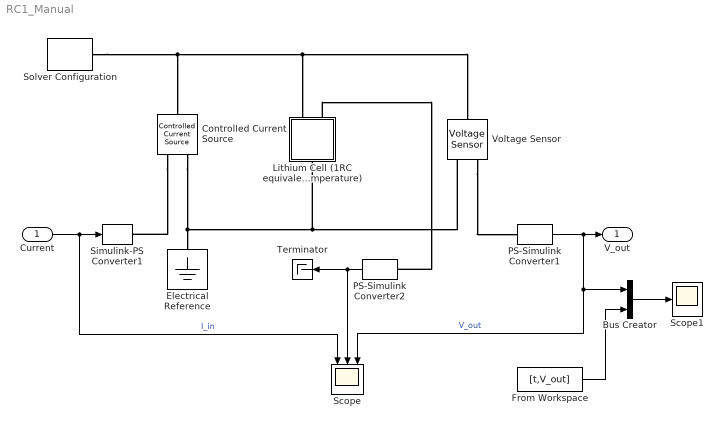
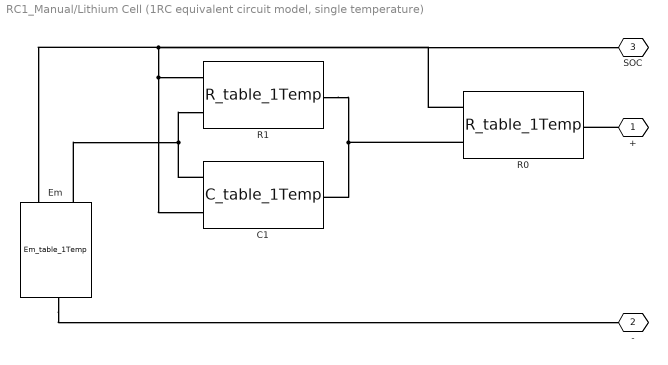
/*
 * File: RC1_Manual.c
 *
 * Code generated for Simulink model 'RC1_Manual'.
 *
 * Model version                  : 1.32
 * Simulink Coder version         : 8.14 (R2018a) 06-Feb-2018
 * C/C++ source code generated on : Mon Jun 11 10:34:03 2018
 *
 * Target selection: ert.tlc
 * Embedded hardware selection: Intel->x86-64 (Windows64)
 * Code generation objectives: Unspecified
 * Validation result: Not run
 */

#include "RC1_Manual.h"

/* Private macros used by the generated code to access rtModel */
#ifndef rtmIsMajorTimeStep
# define rtmIsMajorTimeStep(rtm)       (((rtm)->Timing.simTimeStep) == MAJOR_TIME_STEP)
#endif

#ifndef rtmIsMinorTimeStep
# define rtmIsMinorTimeStep(rtm)       (((rtm)->Timing.simTimeStep) == MINOR_TIME_STEP)
#endif

#ifndef rtmSetTPtr
# define rtmSetTPtr(rtm, val)          ((rtm)->Timing.t = (val))
#endif

/* Continuous states */
X rtX;

/* Mass Matrices */
MassMatrix rtMassMatrix;

/* Block signals and states (default storage) */
DW rtDW;

/* External inputs (root inport signals with default storage) */
ExtU rtU;

/* External outputs (root outports fed by signals with default storage) */
ExtY rtY;

/* Real-time model */
RT_MODEL rtM_;
RT_MODEL *const rtM = &rtM_;

/* private model entry point functions */
extern void RC1_Manual_derivatives(void);

/* ForcingFunction for root system: '<Root>' */
void RC1_Manual_forcingfunction(void)
{
  NeslSimulationData *simulationData;
  real_T time;
  boolean_T tmp;
  real_T tmp_0[4];
  int_T tmp_1[2];
  NeuDiagnosticManager *diagnosticManager;
  NeuDiagnosticTree *diagnosticTree;
  int32_T tmp_2;
  char *msg;
  XDot *_rtXdot;
  _rtXdot = ((XDot *) rtM->derivs);

  /* ForcingFunction for SimscapeExecutionBlock: '<S9>/STATE_1' */
  simulationData = (NeslSimulationData *)rtDW.STATE_1_SimulationData;
  time = rtM->Timing.t[0];
  simulationData->mData->mTime.mN = 1;
  simulationData->mData->mTime.mX = &time;
  simulationData->mData->mContStates.mN = 4;
  simulationData->mData->mContStates.mX = (real_T *)
    &rtX.RC1_ManualLithium_Cell_1RC_equi;
  simulationData->mData->mDiscStates.mN = 0;
  simulationData->mData->mDiscStates.mX = NULL;
  simulationData->mData->mModeVector.mN = 1;
  simulationData->mData->mModeVector.mX = &rtDW.STATE_1_Modes;
  tmp = false;
  simulationData->mData->mFoundZcEvents = tmp;
  simulationData->mData->mIsMajorTimeStep = rtmIsMajorTimeStep(rtM);
  tmp = false;
  simulationData->mData->mIsSolverAssertCheck = tmp;
  simulationData->mData->mIsSolverCheckingCIC = false;
  tmp = rtsiIsSolverComputingJacobian(&rtM->solverInfo);
  simulationData->mData->mIsComputingJacobian = tmp;
  simulationData->mData->mIsEvaluatingF0 = false;
  simulationData->mData->mIsSolverRequestingReset = false;
  tmp_1[0] = 0;
  tmp_0[0] = rtDW.INPUT_1_1_1[0];
  tmp_0[1] = rtDW.INPUT_1_1_1[1];
  tmp_0[2] = rtDW.INPUT_1_1_1[2];
  tmp_0[3] = rtDW.INPUT_1_1_1[3];
  tmp_1[1] = 4;
  simulationData->mData->mInputValues.mN = 4;
  simulationData->mData->mInputValues.mX = &tmp_0[0];
  simulationData->mData->mInputOffsets.mN = 2;
  simulationData->mData->mInputOffsets.mX = &tmp_1[0];
  simulationData->mData->mDx.mN = 4;
  simulationData->mData->mDx.mX = (real_T *)
    &_rtXdot->RC1_ManualLithium_Cell_1RC_equi;
  diagnosticManager = (NeuDiagnosticManager *)rtDW.STATE_1_DiagnosticManager;
  diagnosticTree = neu_diagnostic_manager_get_initial_tree(diagnosticManager);
  tmp_2 = ne_simulator_method((NeslSimulator *)rtDW.STATE_1_Simulator,
    NESL_SIM_FORCINGFUNCTION, simulationData, diagnosticManager);
  if (tmp_2 != 0) {
    tmp = error_buffer_is_empty(rtmGetErrorStatus(rtM));
    if (tmp) {
      msg = rtw_diagnostics_msg(diagnosticTree);
      rtmSetErrorStatus(rtM, msg);
    }
  }

  /* End of ForcingFunction for SimscapeExecutionBlock: '<S9>/STATE_1' */
}

/* MassMatrix for root system: '<Root>' */
void RC1_Manual_massmatrix(void)
{
  NeslSimulationData *simulationData;
  real_T time;
  boolean_T tmp;
  real_T tmp_0[4];
  int_T tmp_1[2];
  real_T *tmp_2;
  NeuDiagnosticManager *diagnosticManager;
  NeuDiagnosticTree *diagnosticTree;
  int32_T tmp_3;
  char *msg;

  /* MassMatrix for SimscapeExecutionBlock: '<S9>/STATE_1' */
  simulationData = (NeslSimulationData *)rtDW.STATE_1_SimulationData;
  time = rtM->Timing.t[0];
  simulationData->mData->mTime.mN = 1;
  simulationData->mData->mTime.mX = &time;
  simulationData->mData->mContStates.mN = 4;
  simulationData->mData->mContStates.mX = (real_T *)
    &rtX.RC1_ManualLithium_Cell_1RC_equi;
  simulationData->mData->mDiscStates.mN = 0;
  simulationData->mData->mDiscStates.mX = NULL;
  simulationData->mData->mModeVector.mN = 1;
  simulationData->mData->mModeVector.mX = &rtDW.STATE_1_Modes;
  tmp = false;
  simulationData->mData->mFoundZcEvents = tmp;
  simulationData->mData->mIsMajorTimeStep = rtmIsMajorTimeStep(rtM);
  tmp = false;
  simulationData->mData->mIsSolverAssertCheck = tmp;
  simulationData->mData->mIsSolverCheckingCIC = false;
  tmp = rtsiIsSolverComputingJacobian(&rtM->solverInfo);
  simulationData->mData->mIsComputingJacobian = tmp;
  simulationData->mData->mIsEvaluatingF0 = false;
  simulationData->mData->mIsSolverRequestingReset = false;
  tmp_1[0] = 0;
  tmp_0[0] = rtDW.INPUT_1_1_1[0];
  tmp_0[1] = rtDW.INPUT_1_1_1[1];
  tmp_0[2] = rtDW.INPUT_1_1_1[2];
  tmp_0[3] = rtDW.INPUT_1_1_1[3];
  tmp_1[1] = 4;
  simulationData->mData->mInputValues.mN = 4;
  simulationData->mData->mInputValues.mX = &tmp_0[0];
  simulationData->mData->mInputOffsets.mN = 2;
  simulationData->mData->mInputOffsets.mX = &tmp_1[0];
  tmp_2 = rtMassMatrix.pr;
  tmp_2 = double_pointer_shift(tmp_2, rtDW.STATE_1_MASS_MATRIX_PR);
  simulationData->mData->mMassMatrixPr.mN = 2;
  simulationData->mData->mMassMatrixPr.mX = tmp_2;
  diagnosticManager = (NeuDiagnosticManager *)rtDW.STATE_1_DiagnosticManager;
  diagnosticTree = neu_diagnostic_manager_get_initial_tree(diagnosticManager);
  tmp_3 = ne_simulator_method((NeslSimulator *)rtDW.STATE_1_Simulator,
    NESL_SIM_MASSMATRIX, simulationData, diagnosticManager);
  if (tmp_3 != 0) {
    tmp = error_buffer_is_empty(rtmGetErrorStatus(rtM));
    if (tmp) {
      msg = rtw_diagnostics_msg(diagnosticTree);
      rtmSetErrorStatus(rtM, msg);
    }
  }

  /* End of MassMatrix for SimscapeExecutionBlock: '<S9>/STATE_1' */
}

void local_evaluateMassMatrix(RTWSolverInfo *si, real_T *Mdest )
{
  /* Refresh global mass matrix */
  RC1_Manual_massmatrix();

  /* Copy the mass matrix from system to the destination, if needed. */
  if (Mdest != rtsiGetSolverMassMatrixPr(si)) {
    real_T *Msrc = rtsiGetSolverMassMatrixPr(si);
    int_T nzmax = rtsiGetSolverMassMatrixNzMax(si);
    (void) memcpy(Mdest, Msrc,
                  (uint_T)nzmax*sizeof(real_T));
  }
}

void local_evaluateFminusMv(RTWSolverInfo *si, const real_T *v, real_T *fminusMv
  )
{
  /* Refresh forcing function */
  rtsiSetdX(si,fminusMv);
  RC1_Manual_forcingfunction();

  /* Refresh global mass matrix */
  RC1_Manual_massmatrix();

  /* Form f - M*v */
  {
    real_T *elptr = rtsiGetSolverMassMatrixPr(si);
    int_T *iptr = rtsiGetSolverMassMatrixIr(si);
    int_T *jc = rtsiGetSolverMassMatrixJc(si);
    int_T nx = 4;
    int_T col,row;
    for (col = 0; col < nx; col++) {
      for (row = jc[col]; row < jc[col+1]; row++) {
        fminusMv[*iptr++] -= (*v) * (*elptr++);
      }

      v++;
    }
  }
}

/* Simplified version of numjac.cpp, for use with RTW. */
void local_numjac( RTWSolverInfo *si, real_T *y, const real_T *v, const real_T
                  *Fty, real_T *fac, real_T *dFdy )
{
  /* constants */
  real_T THRESH = 1e-6;
  real_T EPS = 2.2e-16;                /* utGetEps(); */
  real_T BL = pow(EPS, 0.75);
  real_T BU = pow(EPS, 0.25);
  real_T FACMIN = pow(EPS, 0.78);
  real_T FACMAX = 0.1;
  int_T nx = 4;
  real_T *x = rtsiGetContStates(si);
  real_T del;
  real_T difmax;
  real_T FdelRowmax;
  real_T temp;
  real_T Fdiff;
  real_T maybe;
  real_T xscale;
  real_T fscale;
  real_T *p;
  int_T rowmax;
  int_T i,j;
  if (x != y)
    (void) memcpy(x, y,
                  (uint_T)nx*sizeof(real_T));
  rtsiSetSolverComputingJacobian(si,true);
  for (p = dFdy, j = 0; j < nx; j++, p += nx) {
    /* Select an increment del for a difference approximation to
       column j of dFdy.  The vector fac accounts for experience
       gained in previous calls to numjac. */
    xscale = fabs(x[j]);
    if (xscale < THRESH)
      xscale = THRESH;
    temp = (x[j] + fac[j]*xscale);
    del = temp - y[j];
    while (del == 0.0) {
      if (fac[j] < FACMAX) {
        fac[j] *= 100.0;
        if (fac[j] > FACMAX)
          fac[j] = FACMAX;
        temp = (x[j] + fac[j]*xscale);
        del = temp - x[j];
      } else {
        del = THRESH;                  /* thresh is nonzero */
        break;
      }
    }

    /* Keep del pointing into region. */
    if (Fty[j] >= 0.0)
      del = fabs(del);
    else
      del = -fabs(del);

    /* Form a difference approximation to column j of dFdy. */
    temp = x[j];
    x[j] += del;
    RC1_Manual_step();
    local_evaluateFminusMv(si,v,p );
    x[j] = temp;
    difmax = 0.0;
    rowmax = 0;
    FdelRowmax = p[0];
    temp = 1.0 / del;
    for (i = 0; i < nx; i++) {
      Fdiff = p[i] - Fty[i];
      maybe = fabs(Fdiff);
      if (maybe > difmax) {
        difmax = maybe;
        rowmax = i;
        FdelRowmax = p[i];
      }

      p[i] = temp * Fdiff;
    }

    /* Adjust fac for next call to numjac. */
    if (((FdelRowmax != 0.0) && (Fty[rowmax] != 0.0)) || (difmax == 0.0)) {
      fscale = fabs(FdelRowmax);
      if (fscale < fabs(Fty[rowmax]))
        fscale = fabs(Fty[rowmax]);
      if (difmax <= BL*fscale) {
        /* The difference is small, so increase the increment. */
        fac[j] *= 10.0;
        if (fac[j] > FACMAX)
          fac[j] = FACMAX;
      } else if (difmax > BU*fscale) {
        /* The difference is large, so reduce the increment. */
        fac[j] *= 0.1;
        if (fac[j] < FACMIN)
          fac[j] = FACMIN;
      }
    }
  }

  rtsiSetSolverComputingJacobian(si,false);
}                                      /* end local_numjac */

/*
 * This function updates continuous states using the ODE14x fixed-step
 * solver algorithm
 */
static void rt_ertODEUpdateContinuousStates(RTWSolverInfo *si )
{
  /* Solver Matrices */
  static int_T rt_ODE14x_N[4] = { 12, 8, 6, 4 };

  time_T t0 = rtsiGetT(si);
  time_T t1 = t0;
  time_T h = rtsiGetStepSize(si);
  real_T *x1 = rtsiGetContStates(si);
  int_T order = rtsiGetSolverExtrapolationOrder(si);
  int_T numIter = rtsiGetSolverNumberNewtonIterations(si);
  ODE14X_IntgData *id = (ODE14X_IntgData *)rtsiGetSolverData(si);
  real_T *x0 = id->x0;
  real_T *f0 = id->f0;
  real_T *x1start = id->x1start;
  real_T *f1 = id->f1;
  real_T *Delta = id->Delta;
  real_T *E = id->E;
  real_T *fac = id->fac;
  real_T *dfdx = id->DFDX;
  real_T *W = id->W;
  int_T *pivots = id->pivots;
  real_T *xtmp = id->xtmp;
  real_T *ztmp = id->ztmp;
  int_T *Mpattern_ir = rtsiGetSolverMassMatrixIr(si);
  int_T *Mpattern_jc = rtsiGetSolverMassMatrixJc(si);
  real_T *M = id->M;
  real_T *M1 = id->M1;
  real_T *xdot = id->xdot;
  real_T *Edot = id->Edot;
  real_T *fminusMxdot = id->fminusMxdot;
  int_T col,row,rowidx;
  int_T *N = &(rt_ODE14x_N[0]);
  int_T i,j,k,iter;
  int_T nx = 4;
  rtsiSetSimTimeStep(si,MINOR_TIME_STEP);

  /* Save the state values at time t in y, we'll use x as ynew. */
  (void) memcpy(x0, x1,
                (uint_T)nx*sizeof(real_T));

  /* Assumes that rtsiSetT and ModelOutputs are up-to-date */
  local_evaluateMassMatrix(si,M );
  rtsiSetdX(si, xdot);
  RC1_Manual_derivatives();

  /* f0 = f(t,y) */
  rtsiSetdX(si, f0);
  RC1_Manual_forcingfunction();

  /* Form fminusMxdot = f(x) - M(x)*xdot, d(fminusMxdot)/dx = df/dx - d(Mv)/dx */
  (void) memcpy(fminusMxdot, f0,
                (uint_T)nx*sizeof(real_T));
  for (col = 0; col < nx; col++) {
    for (rowidx = Mpattern_jc[col]; rowidx < Mpattern_jc[col+1]; rowidx++) {
      real_T m_row_col = M[rowidx];
      row = Mpattern_ir[rowidx];
      fminusMxdot[row] -= m_row_col*xdot[col];
    }
  }

  local_numjac(si,x0,xdot,fminusMxdot,fac,dfdx );
  for (j = 0; j < order; j++) {
    real_T *p;
    real_T hN = h/N[j];

    /* Get the iteration matrix and solution at t0 */

    /* [L,U] = lu(M - hN*J) */
    (void) memcpy(W, dfdx,
                  (uint_T)nx*nx*sizeof(real_T));
    for (p = W, i = 0; i < nx*nx; i++, p++) {
      *p *= (-hN);
    }

    for (col = 0, p = W; col < nx; col++, p += nx) {
      for (rowidx = Mpattern_jc[col]; rowidx < Mpattern_jc[col+1]; rowidx++) {
        real_T m_row_col = M[rowidx];
        row = Mpattern_ir[rowidx];
        p[row] += m_row_col;
      }
    }

    rt_lu_real(W, nx,
               pivots);

    /* First Newton's iteration at t0. */
    /* rhs = hN*f0 */
    for (i = 0; i < nx; i++) {
      Delta[i] = hN*f0[i];
    }

    /* Delta = (U \ (L \ rhs)) */
    rt_ForwardSubstitutionRR_Dbl(W, Delta,
      f1, nx,
      1, pivots,
      1);
    rt_BackwardSubstitutionRR_Dbl(W+nx*nx-1, f1+nx-1,
      Delta, nx,
      1, 0);

    /* ytmp = y0 + Delta
       ztmp = (ytmp-y0)/h
     */
    (void) memcpy(x1, x0,
                  (uint_T)nx*sizeof(real_T));
    for (i = 0; i < nx; i++) {
      x1[i] += Delta[i];
      ztmp[i] = Delta[i]/hN;
    }

    /* Additional Newton's iterations, if desired.
       for iter = 2:NewtIter
       rhs = hN*feval(odefun,tn,ytmp,extraArgs{:}) - M*(ytmp - yn);
       if statedepM   % only for state dep. Mdel ~= 0
       Mdel = M - feval(massfun,tn,ytmp);
       rhs = rhs + Mdel*ztmp*h;
       end
       Delta = ( U \ ( L \ rhs ) );
       ytmp = ytmp + Delta;
       ztmp = (ytmp - yn)/h
       end
     */
    rtsiSetT(si, t0);
    rtsiSetdX(si, f1);
    for (iter = 1; iter < numIter; iter++) {
      RC1_Manual_step();
      RC1_Manual_forcingfunction();
      for (i = 0; i < nx; i++) {
        Delta[i] = hN*f1[i];
        xtmp[i] = x1[i] - x0[i];
      }

      /* rhs = hN*f(tn,ytmp) - M*(ytmp-yn) */
      for (col = 0; col < nx; col++) {
        for (rowidx = Mpattern_jc[col]; rowidx < Mpattern_jc[col+1]; rowidx++) {
          real_T m_row_col = M[rowidx];
          row = Mpattern_ir[rowidx];
          Delta[row] -= m_row_col*xtmp[col];
        }
      }

      /* rhs = rhs - (Mtmp - M)*ztmp*h */
      local_evaluateMassMatrix(si,M1 );
      for (i = 0; i < rtsiGetSolverMassMatrixNzMax(si); i++) {
        M1[i] -= M[i];
      }

      for (col = 0; col < nx; col++) {
        for (rowidx = Mpattern_jc[col]; rowidx < Mpattern_jc[col+1]; rowidx++) {
          real_T m_row_col = M1[rowidx];
          row = Mpattern_ir[rowidx];
          Delta[row] -= hN*m_row_col*ztmp[col];
        }
      }

      rt_ForwardSubstitutionRR_Dbl(W, Delta,
        f1, nx,
        1, pivots,
        1);
      rt_BackwardSubstitutionRR_Dbl(W+nx*nx-1, f1+nx-1,
        Delta, nx,
        1, 0);

      /* ytmp = ytmp + delta
         ztmp = (ytmp - yn)/h
       */
      for (i = 0; i < nx; i++) {
        x1[i] += Delta[i];
        ztmp[i] = (x1[i] - x0[i])/hN;
      }
    }

    /* Steps from t0+hN to t1 -- subintegration of N(j) steps for extrapolation
       ttmp = t0;
       for i = 2:N(j)
       ttmp = ttmp + hN
       ytmp0 = ytmp;
       for iter = 1:NewtIter
       rhs = (ytmp0 - ytmp) + hN*feval(odefun,ttmp,ytmp,extraArgs{:});
       Delta = ( U \ ( L \ rhs ) );
       ytmp = ytmp + Delta;
       end
       end
     */
    for (k = 1; k < N[j]; k++) {
      t1 = t0 + k*hN;
      (void) memcpy(x1start, x1,
                    (uint_T)nx*sizeof(real_T));
      rtsiSetT(si, t1);
      rtsiSetdX(si, f1);
      for (iter = 0; iter < numIter; iter++) {
        RC1_Manual_step();
        RC1_Manual_forcingfunction();
        if (iter == 0) {
          for (i = 0; i < nx; i++) {
            Delta[i] = hN*f1[i];
          }
        } else {
          for (i = 0; i < nx; i++) {
            Delta[i] = hN*f1[i];
            xtmp[i] = (x1[i]-x1start[i]);
          }

          /* rhs = hN*f(tn,ytmp) - M*(ytmp-yn) */
          for (col = 0; col < nx; col++) {
            for (rowidx = Mpattern_jc[col]; rowidx < Mpattern_jc[col+1]; rowidx
                 ++) {
              real_T m_row_col = M[rowidx];
              row = Mpattern_ir[rowidx];
              Delta[row] -= m_row_col*xtmp[col];
            }
          }
        }

        /* For state-dep.,  Mdel = M(ttmp,ytmp) - M */
        RC1_Manual_step();
        local_evaluateMassMatrix(si,M1 );
        for (i = 0; i < rtsiGetSolverMassMatrixNzMax(si); i++) {
          M1[i] -= M[i];
        }

        /* rhs = rhs - Mdel*ztmp*h */
        for (col = 0; col < nx; col++) {
          for (rowidx = Mpattern_jc[col]; rowidx < Mpattern_jc[col+1]; rowidx++)
          {
            real_T m_row_col = M1[rowidx];
            row = Mpattern_ir[rowidx];
            Delta[row] -= hN*m_row_col*ztmp[col];
          }
        }

        rt_ForwardSubstitutionRR_Dbl(W, Delta,
          f1, nx,
          1, pivots,
          1);
        rt_BackwardSubstitutionRR_Dbl(W+nx*nx-1, f1+nx-1,
          Delta, nx,
          1, 0);

        /* ytmp = ytmp + Delta
           ztmp = (ytmp - ytmp0)/h
         */
        for (i = 0; i < nx; i++) {
          x1[i] += Delta[i];
          ztmp[i] = (x1[i] - x1start[i])/hN;
        }
      }
    }

    /* Extrapolate to order j
       E(:,j) = ytmp
       for k = j:-1:2
       coef = N(k-1)/(N(j) - N(k-1))
       E(:,k-1) = E(:,k) + coef*( E(:,k) - E(:,k-1) )
       end
     */
    (void) memcpy(&(E[nx*j]), x1,
                  (uint_T)nx*sizeof(real_T));
    for (k = j; k > 0; k--) {
      real_T coef = (real_T)(N[k-1]) / (N[j]-N[k-1]);
      for (i = 0; i < nx; i++) {
        x1[i] = E[nx*k+i] + coef*(E[nx*k+i] - E[nx*(k-1)+i]);
      }

      (void) memcpy(&(E[nx*(k-1)]), x1,
                    (uint_T)nx*sizeof(real_T));
    }

    /* Extrapolate the derivative */
    for (i = 0; i < nx; i++) {
      xdot[i] = (x1[i] - x1start[i])/hN;
    }

    (void) memcpy(&(Edot[nx*j]), xdot,
                  (uint_T)nx*sizeof(real_T));
    for (k = j; k > 0; k--) {
      real_T coef = (real_T)(N[k-1]) / (N[j]-N[k-1]);
      for (i = 0; i < nx; i++) {
        xdot[i] = Edot[nx*k+i] + coef*(Edot[nx*k+i] - Edot[nx*(k-1)+i]);
      }

      (void) memcpy(&(Edot[nx*(k-1)]), xdot,
                    nx*sizeof(real_T));
    }
  }

  /* x1 = E(:,1); */
  (void) memcpy(x1, E,
                (uint_T)nx*sizeof(real_T));

  /* Extrapolated xdot */
  (void) memcpy(xdot, Edot,
                nx*sizeof(real_T));

  /* t1 = t0 + h; */
  rtsiSetT(si,rtsiGetSolverStopTime(si));
  rtsiSetSimTimeStep(si,MAJOR_TIME_STEP);
}

/* Model step function */
void RC1_Manual_step(void)
{
  if (rtmIsMajorTimeStep(rtM)) {
    /* set solver stop time */
    rtsiSetSolverStopTime(&rtM->solverInfo,((rtM->Timing.clockTick0+1)*
      rtM->Timing.stepSize0));
  }                                    /* end MajorTimeStep */

  /* Update absolute time of base rate at minor time step */
  if (rtmIsMinorTimeStep(rtM)) {
    rtM->Timing.t[0] = rtsiGetT(&rtM->solverInfo);
  }

  {
    NeslSimulationData *simulationData;
    real_T time;
    boolean_T tmp;
    real_T tmp_0[4];
    int_T tmp_1[2];
    NeuDiagnosticManager *diagnosticManager;
    NeuDiagnosticTree *diagnosticTree;
    int32_T tmp_2;
    char *msg;
    real_T time_0;
    real_T tmp_3[9];
    int_T tmp_4[3];
    real_T time_1;
    real_T tmp_5[9];
    int_T tmp_6[3];
    real_T rtb_OUTPUT_1_0;
    boolean_T tmp_7;

    /* SimscapeExecutionBlock: '<S9>/STATE_1' incorporates:
     *  SimscapeExecutionBlock: '<S9>/OUTPUT_1_0'
     *  SimscapeExecutionBlock: '<S9>/OUTPUT_1_1'
     */
    simulationData = (NeslSimulationData *)rtDW.STATE_1_SimulationData;
    time = rtM->Timing.t[0];
    simulationData->mData->mTime.mN = 1;
    simulationData->mData->mTime.mX = &time;
    simulationData->mData->mContStates.mN = 4;
    simulationData->mData->mContStates.mX = (real_T *)
      &rtX.RC1_ManualLithium_Cell_1RC_equi;
    simulationData->mData->mDiscStates.mN = 0;
    simulationData->mData->mDiscStates.mX = NULL;
    simulationData->mData->mModeVector.mN = 1;
    simulationData->mData->mModeVector.mX = &rtDW.STATE_1_Modes;
    tmp = false;
    simulationData->mData->mFoundZcEvents = tmp;
    tmp_7 = rtmIsMajorTimeStep(rtM);
    simulationData->mData->mIsMajorTimeStep = tmp_7;
    tmp = false;
    simulationData->mData->mIsSolverAssertCheck = tmp;
    simulationData->mData->mIsSolverCheckingCIC = false;
    tmp = rtsiIsSolverComputingJacobian(&rtM->solverInfo);
    simulationData->mData->mIsComputingJacobian = tmp;
    simulationData->mData->mIsEvaluatingF0 = false;
    simulationData->mData->mIsSolverRequestingReset = false;
    tmp_1[0] = 0;
    tmp_0[0] = rtDW.INPUT_1_1_1[0];
    tmp_0[1] = rtDW.INPUT_1_1_1[1];
    tmp_0[2] = rtDW.INPUT_1_1_1[2];
    tmp_0[3] = rtDW.INPUT_1_1_1[3];
    tmp_1[1] = 4;
    simulationData->mData->mInputValues.mN = 4;
    simulationData->mData->mInputValues.mX = &tmp_0[0];
    simulationData->mData->mInputOffsets.mN = 2;
    simulationData->mData->mInputOffsets.mX = &tmp_1[0];
    simulationData->mData->mOutputs.mN = 5;
    simulationData->mData->mOutputs.mX = &rtDW.STATE_1[0];
    simulationData->mData->mSampleHits.mN = 0;
    simulationData->mData->mSampleHits.mX = NULL;
    simulationData->mData->mIsFundamentalSampleHit = false;
    simulationData->mData->mTolerances.mN = 0;
    simulationData->mData->mTolerances.mX = NULL;
    simulationData->mData->mCstateHasChanged = false;
    diagnosticManager = (NeuDiagnosticManager *)rtDW.STATE_1_DiagnosticManager;
    diagnosticTree = neu_diagnostic_manager_get_initial_tree(diagnosticManager);
    tmp_2 = ne_simulator_method((NeslSimulator *)rtDW.STATE_1_Simulator,
      NESL_SIM_OUTPUTS, simulationData, diagnosticManager);
    if (tmp_2 != 0) {
      tmp = error_buffer_is_empty(rtmGetErrorStatus(rtM));
      if (tmp) {
        msg = rtw_diagnostics_msg(diagnosticTree);
        rtmSetErrorStatus(rtM, msg);
      }
    }

    /* End of SimscapeExecutionBlock: '<S9>/STATE_1' */

    /* SimscapeInputBlock: '<S9>/INPUT_1_1_1' incorporates:
     *  Inport: '<Root>/Current'
     */
    rtDW.INPUT_1_1_1[0] = rtU.I_in;
    rtDW.INPUT_1_1_1[1] = 0.0;
    rtDW.INPUT_1_1_1[2] = 0.0;
    if (rtmIsMajorTimeStep(rtM)) {
      rtDW.INPUT_1_1_1_discrete[0] = !(rtDW.INPUT_1_1_1[0] ==
        rtDW.INPUT_1_1_1_discrete[1]);
      rtDW.INPUT_1_1_1_discrete[1] = rtDW.INPUT_1_1_1[0];
    }

    rtDW.INPUT_1_1_1[0] = rtDW.INPUT_1_1_1_discrete[1];
    rtDW.INPUT_1_1_1[3] = rtDW.INPUT_1_1_1_discrete[0];

    /* End of SimscapeInputBlock: '<S9>/INPUT_1_1_1' */

    /* SimscapeExecutionBlock: '<S9>/OUTPUT_1_1' */
    simulationData = (NeslSimulationData *)rtDW.OUTPUT_1_1_SimulationData;
    time_0 = rtM->Timing.t[0];
    simulationData->mData->mTime.mN = 1;
    simulationData->mData->mTime.mX = &time_0;
    simulationData->mData->mContStates.mN = 0;
    simulationData->mData->mContStates.mX = NULL;
    simulationData->mData->mDiscStates.mN = 0;
    simulationData->mData->mDiscStates.mX = NULL;
    simulationData->mData->mModeVector.mN = 0;
    simulationData->mData->mModeVector.mX = NULL;
    tmp = false;
    simulationData->mData->mFoundZcEvents = tmp;
    simulationData->mData->mIsMajorTimeStep = tmp_7;
    tmp = false;
    simulationData->mData->mIsSolverAssertCheck = tmp;
    simulationData->mData->mIsSolverCheckingCIC = false;
    simulationData->mData->mIsComputingJacobian = false;
    simulationData->mData->mIsEvaluatingF0 = false;
    simulationData->mData->mIsSolverRequestingReset = false;
    tmp_4[0] = 0;
    tmp_3[0] = rtDW.INPUT_1_1_1[0];
    tmp_3[1] = rtDW.INPUT_1_1_1[1];
    tmp_3[2] = rtDW.INPUT_1_1_1[2];
    tmp_3[3] = rtDW.INPUT_1_1_1[3];
    tmp_4[1] = 4;
    tmp_3[4] = rtDW.STATE_1[0];
    tmp_3[5] = rtDW.STATE_1[1];
    tmp_3[6] = rtDW.STATE_1[2];
    tmp_3[7] = rtDW.STATE_1[3];
    tmp_3[8] = rtDW.STATE_1[4];
    tmp_4[2] = 9;
    simulationData->mData->mInputValues.mN = 9;
    simulationData->mData->mInputValues.mX = &tmp_3[0];
    simulationData->mData->mInputOffsets.mN = 3;
    simulationData->mData->mInputOffsets.mX = &tmp_4[0];
    simulationData->mData->mOutputs.mN = 1;
    simulationData->mData->mOutputs.mX = &rtDW.OUTPUT_1_1;
    simulationData->mData->mSampleHits.mN = 0;
    simulationData->mData->mSampleHits.mX = NULL;
    simulationData->mData->mIsFundamentalSampleHit = false;
    simulationData->mData->mTolerances.mN = 0;
    simulationData->mData->mTolerances.mX = NULL;
    simulationData->mData->mCstateHasChanged = false;
    diagnosticManager = (NeuDiagnosticManager *)
      rtDW.OUTPUT_1_1_DiagnosticManager;
    diagnosticTree = neu_diagnostic_manager_get_initial_tree(diagnosticManager);
    tmp_2 = ne_simulator_method((NeslSimulator *)rtDW.OUTPUT_1_1_Simulator,
      NESL_SIM_OUTPUTS, simulationData, diagnosticManager);
    if (tmp_2 != 0) {
      tmp = error_buffer_is_empty(rtmGetErrorStatus(rtM));
      if (tmp) {
        msg = rtw_diagnostics_msg(diagnosticTree);
        rtmSetErrorStatus(rtM, msg);
      }
    }

    /* Outport: '<Root>/V_out' */
    rtY.V_out = rtDW.OUTPUT_1_1;

    /* SimscapeExecutionBlock: '<S9>/OUTPUT_1_0' */
    simulationData = (NeslSimulationData *)rtDW.OUTPUT_1_0_SimulationData;
    time_1 = rtM->Timing.t[0];
    simulationData->mData->mTime.mN = 1;
    simulationData->mData->mTime.mX = &time_1;
    simulationData->mData->mContStates.mN = 0;
    simulationData->mData->mContStates.mX = NULL;
    simulationData->mData->mDiscStates.mN = 0;
    simulationData->mData->mDiscStates.mX = NULL;
    simulationData->mData->mModeVector.mN = 0;
    simulationData->mData->mModeVector.mX = NULL;
    tmp = false;
    simulationData->mData->mFoundZcEvents = tmp;
    simulationData->mData->mIsMajorTimeStep = tmp_7;
    tmp = false;
    simulationData->mData->mIsSolverAssertCheck = tmp;
    simulationData->mData->mIsSolverCheckingCIC = false;
    simulationData->mData->mIsComputingJacobian = false;
    simulationData->mData->mIsEvaluatingF0 = false;
    simulationData->mData->mIsSolverRequestingReset = false;
    tmp_6[0] = 0;
    tmp_5[0] = rtDW.INPUT_1_1_1[0];
    tmp_5[1] = rtDW.INPUT_1_1_1[1];
    tmp_5[2] = rtDW.INPUT_1_1_1[2];
    tmp_5[3] = rtDW.INPUT_1_1_1[3];
    tmp_6[1] = 4;
    tmp_5[4] = rtDW.STATE_1[0];
    tmp_5[5] = rtDW.STATE_1[1];
    tmp_5[6] = rtDW.STATE_1[2];
    tmp_5[7] = rtDW.STATE_1[3];
    tmp_5[8] = rtDW.STATE_1[4];
    tmp_6[2] = 9;
    simulationData->mData->mInputValues.mN = 9;
    simulationData->mData->mInputValues.mX = &tmp_5[0];
    simulationData->mData->mInputOffsets.mN = 3;
    simulationData->mData->mInputOffsets.mX = &tmp_6[0];
    simulationData->mData->mOutputs.mN = 1;
    simulationData->mData->mOutputs.mX = &rtb_OUTPUT_1_0;
    simulationData->mData->mSampleHits.mN = 0;
    simulationData->mData->mSampleHits.mX = NULL;
    simulationData->mData->mIsFundamentalSampleHit = false;
    simulationData->mData->mTolerances.mN = 0;
    simulationData->mData->mTolerances.mX = NULL;
    simulationData->mData->mCstateHasChanged = false;
    diagnosticManager = (NeuDiagnosticManager *)
      rtDW.OUTPUT_1_0_DiagnosticManager;
    diagnosticTree = neu_diagnostic_manager_get_initial_tree(diagnosticManager);
    tmp_2 = ne_simulator_method((NeslSimulator *)rtDW.OUTPUT_1_0_Simulator,
      NESL_SIM_OUTPUTS, simulationData, diagnosticManager);
    if (tmp_2 != 0) {
      tmp = error_buffer_is_empty(rtmGetErrorStatus(rtM));
      if (tmp) {
        msg = rtw_diagnostics_msg(diagnosticTree);
        rtmSetErrorStatus(rtM, msg);
      }
    }
  }

  if (rtmIsMajorTimeStep(rtM)) {
    NeslSimulationData *simulationData;
    real_T time;
    boolean_T tmp;
    real_T tmp_0[4];
    int_T tmp_1[2];
    NeuDiagnosticManager *diagnosticManager;
    NeuDiagnosticTree *diagnosticTree;
    int32_T tmp_2;
    char *msg;

    /* Update for SimscapeExecutionBlock: '<S9>/STATE_1' */
    simulationData = (NeslSimulationData *)rtDW.STATE_1_SimulationData;
    time = rtM->Timing.t[0];
    simulationData->mData->mTime.mN = 1;
    simulationData->mData->mTime.mX = &time;
    simulationData->mData->mContStates.mN = 4;
    simulationData->mData->mContStates.mX = (real_T *)
      &rtX.RC1_ManualLithium_Cell_1RC_equi;
    simulationData->mData->mDiscStates.mN = 0;
    simulationData->mData->mDiscStates.mX = NULL;
    simulationData->mData->mModeVector.mN = 1;
    simulationData->mData->mModeVector.mX = &rtDW.STATE_1_Modes;
    tmp = false;
    simulationData->mData->mFoundZcEvents = tmp;
    simulationData->mData->mIsMajorTimeStep = rtmIsMajorTimeStep(rtM);
    tmp = false;
    simulationData->mData->mIsSolverAssertCheck = tmp;
    simulationData->mData->mIsSolverCheckingCIC = false;
    tmp = rtsiIsSolverComputingJacobian(&rtM->solverInfo);
    simulationData->mData->mIsComputingJacobian = tmp;
    simulationData->mData->mIsEvaluatingF0 = false;
    simulationData->mData->mIsSolverRequestingReset = false;
    tmp_1[0] = 0;
    tmp_0[0] = rtDW.INPUT_1_1_1[0];
    tmp_0[1] = rtDW.INPUT_1_1_1[1];
    tmp_0[2] = rtDW.INPUT_1_1_1[2];
    tmp_0[3] = rtDW.INPUT_1_1_1[3];
    tmp_1[1] = 4;
    simulationData->mData->mInputValues.mN = 4;
    simulationData->mData->mInputValues.mX = &tmp_0[0];
    simulationData->mData->mInputOffsets.mN = 2;
    simulationData->mData->mInputOffsets.mX = &tmp_1[0];
    diagnosticManager = (NeuDiagnosticManager *)rtDW.STATE_1_DiagnosticManager;
    diagnosticTree = neu_diagnostic_manager_get_initial_tree(diagnosticManager);
    tmp_2 = ne_simulator_method((NeslSimulator *)rtDW.STATE_1_Simulator,
      NESL_SIM_UPDATE, simulationData, diagnosticManager);
    if (tmp_2 != 0) {
      tmp = error_buffer_is_empty(rtmGetErrorStatus(rtM));
      if (tmp) {
        msg = rtw_diagnostics_msg(diagnosticTree);
        rtmSetErrorStatus(rtM, msg);
      }
    }

    /* End of Update for SimscapeExecutionBlock: '<S9>/STATE_1' */
  }                                    /* end MajorTimeStep */

  if (rtmIsMajorTimeStep(rtM)) {
    rt_ertODEUpdateContinuousStates(&rtM->solverInfo);

    /* Update absolute time for base rate */
    /* The "clockTick0" counts the number of times the code of this task has
     * been executed. The absolute time is the multiplication of "clockTick0"
     * and "Timing.stepSize0". Size of "clockTick0" ensures timer will not
     * overflow during the application lifespan selected.
     */
    ++rtM->Timing.clockTick0;
    rtM->Timing.t[0] = rtsiGetSolverStopTime(&rtM->solverInfo);

    {
      /* Update absolute timer for sample time: [100.0s, 0.0s] */
      /* The "clockTick1" counts the number of times the code of this task has
       * been executed. The resolution of this integer timer is 100.0, which is the step size
       * of the task. Size of "clockTick1" ensures timer will not overflow during the
       * application lifespan selected.
       */
      rtM->Timing.clockTick1++;
    }
  }                                    /* end MajorTimeStep */
}
